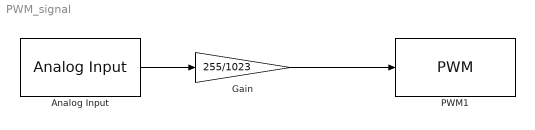
/*
 * File: PWM_signal.c
 *
 * Code generated for Simulink model 'PWM_signal'.
 *
 * Model version                  : 1.4
 * Simulink Coder version         : 24.2 (R2024b) 21-Jun-2024
 * C/C++ source code generated on : Wed Jun 11 08:54:10 2025
 *
 * Target selection: ert.tlc
 * Embedded hardware selection: Atmel->AVR
 * Code generation objectives:
 *    1. Execution efficiency
 *    2. RAM efficiency
 * Validation result: Not run
 */

#include "PWM_signal.h"
#include <math.h>
#include "rtwtypes.h"
#ifndef UCHAR_MAX
#include <limits.h>
#endif

#if ( UCHAR_MAX != (0xFFU) ) || ( SCHAR_MAX != (0x7F) )
#error Code was generated for compiler with different sized uchar/char. \
Consider adjusting Test hardware word size settings on the \
Hardware Implementation pane to match your compiler word sizes as \
defined in limits.h of the compiler. Alternatively, you can \
select the Test hardware is the same as production hardware option and \
select the Enable portable word sizes option on the Code Generation > \
Verification pane for ERT based targets, which will disable the \
preprocessor word size checks.
#endif

#if ( USHRT_MAX != (0xFFFFU) ) || ( SHRT_MAX != (0x7FFF) )
#error Code was generated for compiler with different sized ushort/short. \
Consider adjusting Test hardware word size settings on the \
Hardware Implementation pane to match your compiler word sizes as \
defined in limits.h of the compiler. Alternatively, you can \
select the Test hardware is the same as production hardware option and \
select the Enable portable word sizes option on the Code Generation > \
Verification pane for ERT based targets, which will disable the \
preprocessor word size checks.
#endif

#if ( UINT_MAX != (0xFFFFU) ) || ( INT_MAX != (0x7FFF) )
#error Code was generated for compiler with different sized uint/int. \
Consider adjusting Test hardware word size settings on the \
Hardware Implementation pane to match your compiler word sizes as \
defined in limits.h of the compiler. Alternatively, you can \
select the Test hardware is the same as production hardware option and \
select the Enable portable word sizes option on the Code Generation > \
Verification pane for ERT based targets, which will disable the \
preprocessor word size checks.
#endif

#if ( ULONG_MAX != (0xFFFFFFFFUL) ) || ( LONG_MAX != (0x7FFFFFFFL) )
#error Code was generated for compiler with different sized ulong/long. \
Consider adjusting Test hardware word size settings on the \
Hardware Implementation pane to match your compiler word sizes as \
defined in limits.h of the compiler. Alternatively, you can \
select the Test hardware is the same as production hardware option and \
select the Enable portable word sizes option on the Code Generation > \
Verification pane for ERT based targets, which will disable the \
preprocessor word size checks.
#endif

/* Skipping ulong_long/long_long check: insufficient preprocessor integer range. */

/* Block signals and states (default storage) */
DW rtDW;

/* Model step function */
void PWM_signal_step(void)
{
  uint16_T b_varargout_1;

  /* MATLABSystem: '<Root>/Analog Input' */
  rtDW.obj.AnalogInDriverObj.MW_ANALOGIN_HANDLE = MW_AnalogIn_GetHandle(18UL);
  MW_AnalogInSingle_ReadResult(rtDW.obj.AnalogInDriverObj.MW_ANALOGIN_HANDLE,
    &b_varargout_1, MW_ANALOGIN_UINT16);

  /* MATLABSystem: '<Root>/PWM1' incorporates:
   *  Gain: '<Root>/Gain'
   *  MATLABSystem: '<Root>/Analog Input'
   * */
  rtDW.obj_l.PWMDriverObj.MW_PWM_HANDLE = MW_PWM_GetHandle(6UL);
  MW_PWM_SetDutyCycle(rtDW.obj_l.PWMDriverObj.MW_PWM_HANDLE, fmin(65344.0 *
    (real_T)b_varargout_1 * 3.814697265625E-6, 255.0));
}
